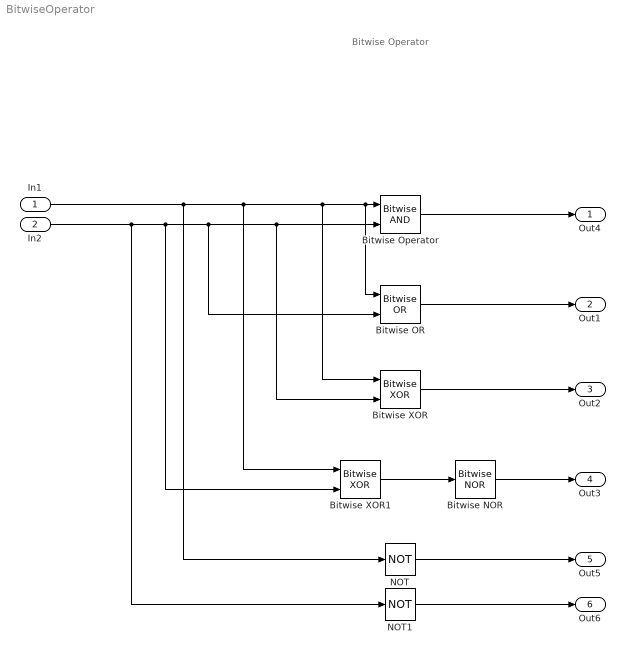
/*
 * File: BitwiseOperator.c
 *
 * Code generated for Simulink model 'BitwiseOperator'.
 *
 * Model version                  : 1.3
 * Simulink Coder version         : 9.0 (R2018b) 24-May-2018
 * C/C++ source code generated on : Thu Feb 10 14:45:09 2022
 *
 * Target selection: ert.tlc
 * Embedded hardware selection: Intel->x86-64 (Windows64)
 * Code generation objectives: Unspecified
 * Validation result: Not run
 */

#include "BitwiseOperator.h"
#include "BitwiseOperator_private.h"

/* External inputs (root inport signals with default storage) */
ExtU_BitwiseOperator_T BitwiseOperator_U;

/* External outputs (root outports fed by signals with default storage) */
ExtY_BitwiseOperator_T BitwiseOperator_Y;

/* Real-time model */
RT_MODEL_BitwiseOperator_T BitwiseOperator_M_;
RT_MODEL_BitwiseOperator_T *const BitwiseOperator_M = &BitwiseOperator_M_;

/* Model step function */
void BitwiseOperator_step(void)
{
  /* Outport: '<Root>/Out4' incorporates:
   *  Inport: '<Root>/In1'
   *  Inport: '<Root>/In2'
   *  S-Function (sfix_bitop): '<Root>/Bitwise Operator'
   */
  BitwiseOperator_Y.Out4 = (BitwiseOperator_U.In1 && BitwiseOperator_U.In2);

  /* Outport: '<Root>/Out1' incorporates:
   *  Inport: '<Root>/In1'
   *  Inport: '<Root>/In2'
   *  S-Function (sfix_bitop): '<Root>/Bitwise OR'
   */
  BitwiseOperator_Y.Out1 = (BitwiseOperator_U.In1 || BitwiseOperator_U.In2);

  /* Outport: '<Root>/Out2' incorporates:
   *  Inport: '<Root>/In1'
   *  Inport: '<Root>/In2'
   *  S-Function (sfix_bitop): '<Root>/Bitwise XOR'
   */
  BitwiseOperator_Y.Out2 = BitwiseOperator_U.In1 ^ BitwiseOperator_U.In2;

  /* Outport: '<Root>/Out3' incorporates:
   *  Inport: '<Root>/In1'
   *  Inport: '<Root>/In2'
   *  S-Function (sfix_bitop): '<Root>/Bitwise NOR'
   *  S-Function (sfix_bitop): '<Root>/Bitwise XOR1'
   */
  BitwiseOperator_Y.Out3 = (BitwiseOperator_U.In1 == BitwiseOperator_U.In2);

  /* Outport: '<Root>/Out5' incorporates:
   *  Inport: '<Root>/In1'
   *  Logic: '<Root>/NOT'
   */
  BitwiseOperator_Y.Out5 = !BitwiseOperator_U.In1;

  /* Outport: '<Root>/Out6' incorporates:
   *  Inport: '<Root>/In2'
   *  Logic: '<Root>/NOT1'
   */
  BitwiseOperator_Y.Out6 = !BitwiseOperator_U.In2;
}
